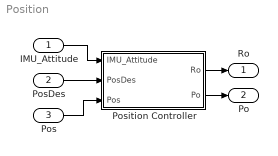
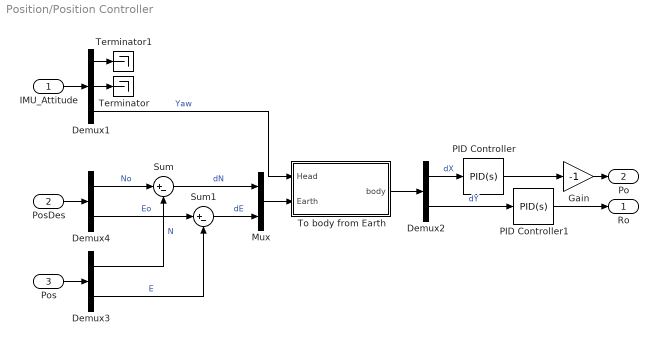
== matlab function Position/Position Controller/To body from Earth ==
function body = Earth(Head, Earth)
%#codegen
psi = Head;

Spsi = sin(psi);
Cpsi = cos(psi);

TBE = [ Cpsi Spsi ;
       -Spsi Cpsi];

body = TBE* Earth;

/*
 * Position.cpp
 *
 * Academic License - for use in teaching, academic research, and meeting
 * course requirements at degree granting institutions only.  Not for
 * government, commercial, or other organizational use.
 *
 * Code generation for model "Position".
 *
 * Model version              : 1.86
 * Simulink Coder version : 8.8.1 (R2015aSP1) 04-Sep-2015
 * C++ source code generated on : Mon May 09 12:09:11 2016
 *
 * Target selection: grt.tlc
 * Note: GRT includes extra infrastructure and instrumentation for prototyping
 * Embedded hardware selection: ARM Compatible->ARM Cortex
 * Code generation objective: Execution efficiency
 * Validation result: Not run
 */

#include "Position.h"
#include "Position_private.h"

/*
 * This function updates continuous states using the ODE2 fixed-step
 * solver algorithm
 */
void PositionModelClass::rt_ertODEUpdateContinuousStates(RTWSolverInfo *si )
{
  time_T tnew = rtsiGetSolverStopTime(si);
  time_T h = rtsiGetStepSize(si);
  real_T *x = rtsiGetContStates(si);
  ODE2_IntgData *id = (ODE2_IntgData *)rtsiGetSolverData(si);
  real_T *y = id->y;
  real_T *f0 = id->f[0];
  real_T *f1 = id->f[1];
  real_T temp;
  int_T i;
  int_T nXc = 4;
  rtsiSetSimTimeStep(si,MINOR_TIME_STEP);

  /* Save the state values at time t in y, we'll use x as ynew. */
  (void) memcpy(y, x,
                (uint_T)nXc*sizeof(real_T));

  /* Assumes that rtsiSetT and ModelOutputs are up-to-date */
  /* f0 = f(t,y) */
  rtsiSetdX(si, f0);
  Position_derivatives();

  /* f1 = f(t + h, y + h*f0) */
  for (i = 0; i < nXc; i++) {
    x[i] = y[i] + (h*f0[i]);
  }

  rtsiSetT(si, tnew);
  rtsiSetdX(si, f1);
  this->step();
  Position_derivatives();

  /* tnew = t + h
     ynew = y + (h/2)*(f0 + f1) */
  temp = 0.5*h;
  for (i = 0; i < nXc; i++) {
    x[i] = y[i] + temp*(f0[i] + f1[i]);
  }

  rtsiSetSimTimeStep(si,MAJOR_TIME_STEP);
}

/* Model step function */
void PositionModelClass::step()
{
  real_T Spsi;
  real_T Cpsi;
  real_T tmp;
  real_T tmp_0;
  real_T rtb_body_idx_0;
  if (rtmIsMajorTimeStep((&Position_M))) {
    /* set solver stop time */
    if (!((&Position_M)->Timing.clockTick0+1)) {
      rtsiSetSolverStopTime(&(&Position_M)->solverInfo, (((&Position_M)
        ->Timing.clockTickH0 + 1) * (&Position_M)->Timing.stepSize0 *
        4294967296.0));
    } else {
      rtsiSetSolverStopTime(&(&Position_M)->solverInfo, (((&Position_M)
        ->Timing.clockTick0 + 1) * (&Position_M)->Timing.stepSize0 +
        (&Position_M)->Timing.clockTickH0 * (&Position_M)->Timing.stepSize0 *
        4294967296.0));
    }
  }                                    /* end MajorTimeStep */

  /* Update absolute time of base rate at minor time step */
  if (rtmIsMinorTimeStep((&Position_M))) {
    (&Position_M)->Timing.t[0] = rtsiGetT(&(&Position_M)->solverInfo);
  }

  /* MATLAB Function: '<S1>/To body from Earth' incorporates:
   *  Inport: '<Root>/IMU_Attitude'
   */
  /* MATLAB Function 'Position Controller/To body from Earth': '<S4>:1' */
  /* '<S4>:1:5' */
  Spsi = sin(Position_U.IMU_Attitude[2]);

  /* '<S4>:1:6' */
  Cpsi = cos(Position_U.IMU_Attitude[2]);

  /* SignalConversion: '<S4>/TmpSignal ConversionAt SFunction Inport2' incorporates:
   *  Inport: '<Root>/Pos'
   *  Inport: '<Root>/PosDes'
   *  MATLAB Function: '<S1>/To body from Earth'
   *  Sum: '<S1>/Sum'
   *  Sum: '<S1>/Sum1'
   */
  /* '<S4>:1:8' */
  /* '<S4>:1:11' */
  tmp = Position_U.PosDes[0] - Position_U.Pos[0];
  tmp_0 = Position_U.PosDes[1] - Position_U.Pos[1];

  /* MATLAB Function: '<S1>/To body from Earth' */
  rtb_body_idx_0 = Cpsi * tmp + Spsi * tmp_0;
  Spsi = -Spsi * tmp + Cpsi * tmp_0;

  /* Gain: '<S3>/Filter Coefficient' incorporates:
   *  Gain: '<S3>/Derivative Gain'
   *  Integrator: '<S3>/Filter'
   *  Sum: '<S3>/SumD'
   */
  Position_B.FilterCoefficient = (Position_P.KD * Spsi -
    Position_X.Filter_CSTATE) * Position_P.KN;

  /* Sum: '<S3>/Sum' incorporates:
   *  Gain: '<S3>/Proportional Gain'
   *  Integrator: '<S3>/Integrator'
   */
  Cpsi = (Position_P.KP * Spsi + Position_X.Integrator_CSTATE) +
    Position_B.FilterCoefficient;

  /* Saturate: '<S3>/Saturate' */
  if (Cpsi > Position_P.rollMax) {
    /* Outport: '<Root>/Ro' */
    Position_Y.Ro = Position_P.rollMax;
  } else if (Cpsi < -Position_P.rollMax) {
    /* Outport: '<Root>/Ro' */
    Position_Y.Ro = -Position_P.rollMax;
  } else {
    /* Outport: '<Root>/Ro' */
    Position_Y.Ro = Cpsi;
  }

  /* End of Saturate: '<S3>/Saturate' */

  /* Gain: '<S2>/Filter Coefficient' incorporates:
   *  Gain: '<S2>/Derivative Gain'
   *  Integrator: '<S2>/Filter'
   *  Sum: '<S2>/SumD'
   */
  Position_B.FilterCoefficient_m = (Position_P.KD * rtb_body_idx_0 -
    Position_X.Filter_CSTATE_h) * Position_P.KN;

  /* Sum: '<S2>/Sum' incorporates:
   *  Gain: '<S2>/Proportional Gain'
   *  Integrator: '<S2>/Integrator'
   */
  Cpsi = (Position_P.KP * rtb_body_idx_0 + Position_X.Integrator_CSTATE_c) +
    Position_B.FilterCoefficient_m;

  /* Saturate: '<S2>/Saturate' */
  if (Cpsi > Position_P.pitchMax) {
    Cpsi = Position_P.pitchMax;
  } else {
    if (Cpsi < -Position_P.pitchMax) {
      Cpsi = -Position_P.pitchMax;
    }
  }

  /* Outport: '<Root>/Po' incorporates:
   *  Gain: '<S1>/Gain'
   *  Saturate: '<S2>/Saturate'
   */
  Position_Y.Po = Position_P.Gain_Gain * Cpsi;

  /* Gain: '<S2>/Integral Gain' */
  Position_B.IntegralGain = Position_P.KI * rtb_body_idx_0;

  /* Gain: '<S3>/Integral Gain' */
  Position_B.IntegralGain_n = Position_P.KI * Spsi;
  if (rtmIsMajorTimeStep((&Position_M))) {
    rt_ertODEUpdateContinuousStates(&(&Position_M)->solverInfo);

    /* Update absolute time for base rate */
    /* The "clockTick0" counts the number of times the code of this task has
     * been executed. The absolute time is the multiplication of "clockTick0"
     * and "Timing.stepSize0". Size of "clockTick0" ensures timer will not
     * overflow during the application lifespan selected.
     * Timer of this task consists of two 32 bit unsigned integers.
     * The two integers represent the low bits Timing.clockTick0 and the high bits
     * Timing.clockTickH0. When the low bit overflows to 0, the high bits increment.
     */
    if (!(++(&Position_M)->Timing.clockTick0)) {
      ++(&Position_M)->Timing.clockTickH0;
    }

    (&Position_M)->Timing.t[0] = rtsiGetSolverStopTime(&(&Position_M)
      ->solverInfo);

    {
      /* Update absolute timer for sample time: [0.01s, 0.0s] */
      /* The "clockTick1" counts the number of times the code of this task has
       * been executed. The resolution of this integer timer is 0.01, which is the step size
       * of the task. Size of "clockTick1" ensures timer will not overflow during the
       * application lifespan selected.
       * Timer of this task consists of two 32 bit unsigned integers.
       * The two integers represent the low bits Timing.clockTick1 and the high bits
       * Timing.clockTickH1. When the low bit overflows to 0, the high bits increment.
       */
      (&Position_M)->Timing.clockTick1++;
      if (!(&Position_M)->Timing.clockTick1) {
        (&Position_M)->Timing.clockTickH1++;
      }
    }
  }                                    /* end MajorTimeStep */
}
